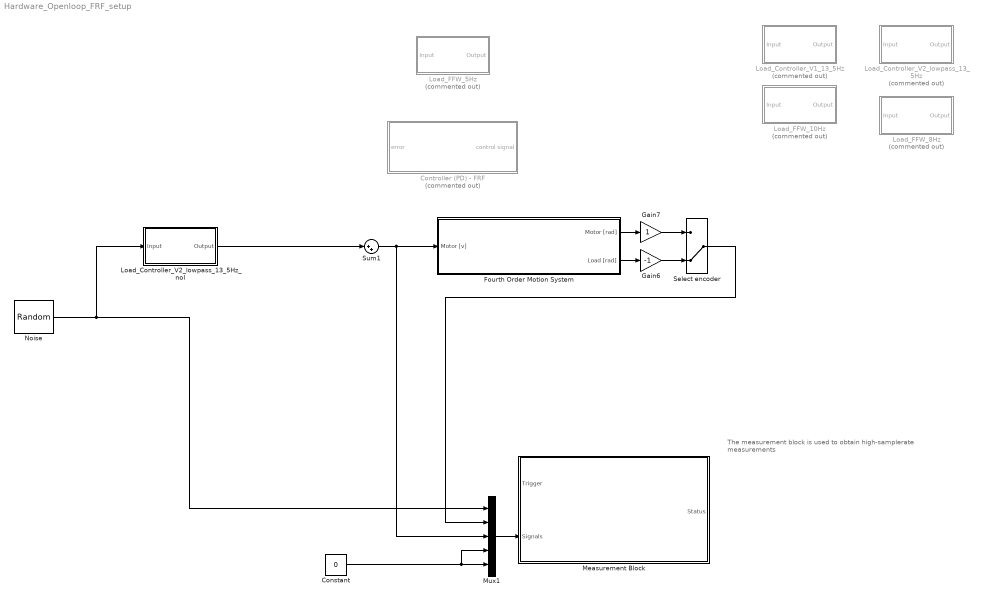
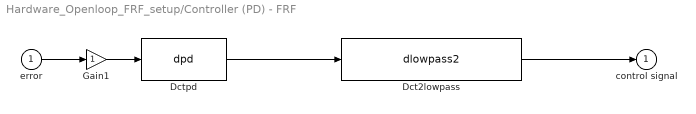
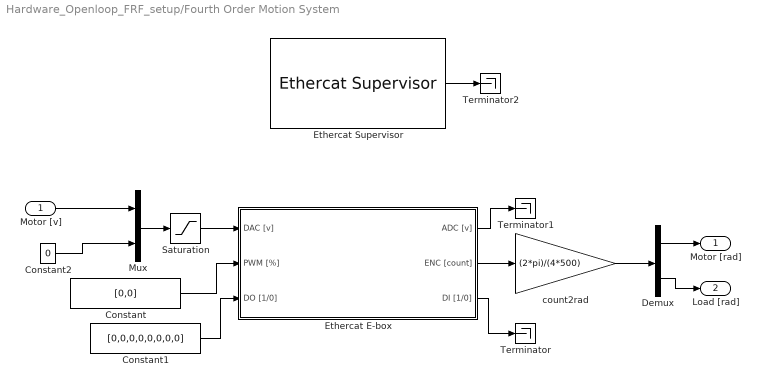
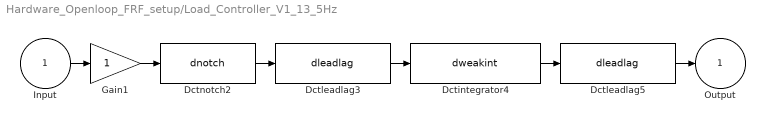
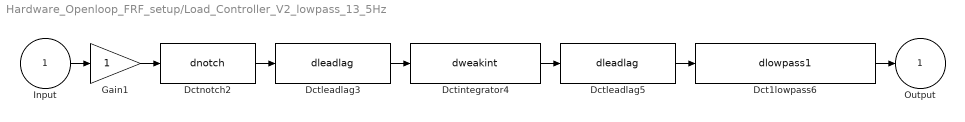
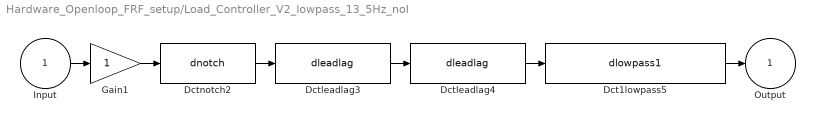
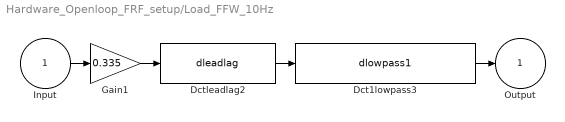
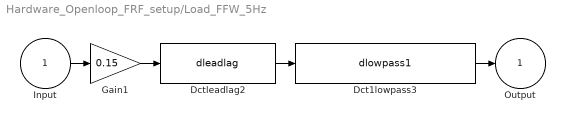
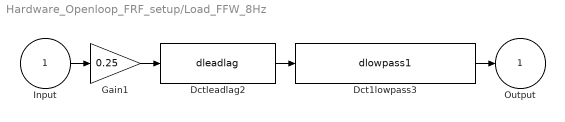
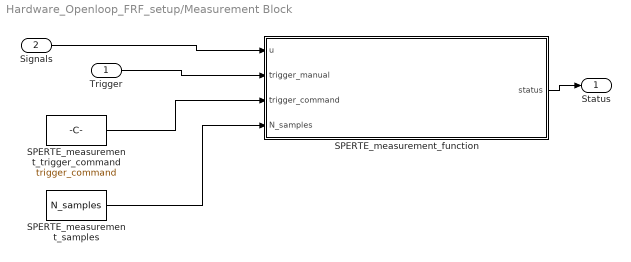
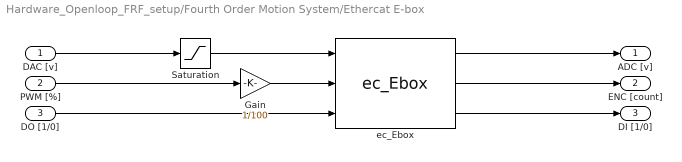
== matlab function Hardware_Openloop_FRF_setup/Measurement Block/SPERTE_measurement_function ==
function status = perform_measurement(u, trigger_manual, trigger_command, triggertype, N_samples)

%% Persistent variables
persistent fileID NF busy NS

% Init parameters
if isempty(NF)
    NF = int16(0);
end
if isempty(NS)
    NS = uint32(0);
end
if isempty(fileID)
    fileID = 0;
end
if isempty(busy)
    busy = uint8(0);
end

%% Check the triggers
if ( (triggertype == 0 && trigger_manual == 1) || (triggertype == 1 && trigger_command == 1) || (triggertype == 2 && (trigger_command == 1 || trigger_manual == 1) ) )
    if busy == 1
        % We are already busy, nothing to do
    else
        % We should start a new one
        fileID = fopen(sprintf('measurement_%d.bin',NF),'w');  
        NF = NF + 1;
        busy = uint8(1);
        NS = uint32(0);
    end
end

% We have started a measurement
if busy == 1
    if NS < N_samples 
        % Here we write the sample, in single precision float
        fwrite(fileID,u,'single');
        NS = NS + uint32(1);
    else
       % We have N samples already, we are done
       fclose(fileID);
       busy = uint8(0);
       NS = uint32(0);
    end
      
end
    % Output state
    status = uint8(busy);
end

/*
 * Hardware_Openloop_FRF_setup.c
 *
 * Academic License - for use in teaching, academic research, and meeting
 * course requirements at degree granting institutions only.  Not for
 * government, commercial, or other organizational use.
 *
 * Code generation for model "Hardware_Openloop_FRF_setup".
 *
 * Model version              : 14.20
 * Simulink Coder version : 25.1 (R2025a) 21-Nov-2024
 * C source code generated on : Tue Oct 21 13:19:38 2025
 *
 * Target selection: ert.tlc
 * Note: GRT includes extra infrastructure and instrumentation for prototyping
 * Embedded hardware selection: ARM Compatible->ARM Cortex-A (32-bit)
 * Code generation objectives: Unspecified
 * Validation result: Not run
 */

#include "Hardware_Openloop_FRF_setup.h"
#include "Hardware_Openloop_FRF_setup_types.h"
#include "rtwtypes.h"
#include <string.h>
#include <math.h>
#include "rt_nonfinite.h"
#include "Hardware_Openloop_FRF_setup_private.h"
#include <stddef.h>
#include <stdio.h>
#include <stdlib.h>

/* Named constants for MATLAB Function: '<S3>/SPERTE_measurement_function' */
#define Hardware_Openloop_FR_CALL_EVENT (-1)

/* Block signals (default storage) */
B_Hardware_Openloop_FRF_setup_T Hardware_Openloop_FRF_setup_B;

/* Block states (default storage) */
DW_Hardware_Openloop_FRF_setup_T Hardware_Openloop_FRF_setup_DW;

/* Real-time model */
static RT_MODEL_Hardware_Openloop_FRF_setup_T Hardware_Openloop_FRF_setup_M_;
RT_MODEL_Hardware_Openloop_FRF_setup_T *const Hardware_Openloop_FRF_setup_M =
  &Hardware_Openloop_FRF_setup_M_;

/* Forward declaration for local functions */
static void Hardware_Openloo_emxInit_char_T(emxArray_char_T_Hardware_Open_T
  **pEmxArray, int32_T numDimensions);
static void Hardwa_emxEnsureCapacity_char_T(emxArray_char_T_Hardware_Open_T
  *emxArray, int32_T oldNumel);
static void Hardware_Openloo_emxFree_char_T(emxArray_char_T_Hardware_Open_T
  **pEmxArray);
static int8_T Hardware_Openloop_FRF__filedata(void);
static int8_T Hardware_Openloop_FRF_se_cfopen(const
  emxArray_char_T_Hardware_Open_T *cfilename, const char_T *cpermission);
static int32_T Hardware_Openloop_FRF_s_cfclose(real_T fid);

/*
 * Writes out MAT-file header.  Returns success or failure.
 * Returns:
 * 0 - success
 * 1 - failure
 */
int_T rt_WriteMat4FileHeader(FILE *fp, int32_T m, int32_T n, const char *name)
{
  typedef enum { ELITTLE_ENDIAN, EBIG_ENDIAN } ByteOrder;

  int16_T one = 1;
  ByteOrder byteOrder = (*((int8_T *)&one)==1) ? ELITTLE_ENDIAN : EBIG_ENDIAN;
  int32_T type = (byteOrder == ELITTLE_ENDIAN) ? 0: 1000;
  int32_T imagf = 0;
  int32_T name_len = (int32_T)strlen(name) + 1;
  if ((fwrite(&type, sizeof(int32_T), 1, fp) == 0) ||
      (fwrite(&m, sizeof(int32_T), 1, fp) == 0) ||
      (fwrite(&n, sizeof(int32_T), 1, fp) == 0) ||
      (fwrite(&imagf, sizeof(int32_T), 1, fp) == 0) ||
      (fwrite(&name_len, sizeof(int32_T), 1, fp) == 0) ||
      (fwrite(name, sizeof(char), name_len, fp) == 0)) {
    return(1);
  } else {
    return(0);
  }
}                                      /* end rt_WriteMat4FileHeader */

real_T rt_urand_Upu32_Yd_f_pw_snf(uint32_T *u)
{
  uint32_T hi;
  uint32_T lo;

  /* Uniform random number generator (random number between 0 and 1)

     #define IA      16807                      magic multiplier = 7^5
     #define IM      2147483647                 modulus = 2^31-1
     #define IQ      127773                     IM div IA
     #define IR      2836                       IM modulo IA
     #define S       4.656612875245797e-10      reciprocal of 2^31-1
     test = IA * (seed % IQ) - IR * (seed/IQ)
     seed = test < 0 ? (test + IM) : test
     return (seed*S)
   */
  lo = *u % 127773U * 16807U;
  hi = *u / 127773U * 2836U;
  if (lo < hi) {
    *u = 2147483647U - (hi - lo);
  } else {
    *u = lo - hi;
  }

  return (real_T)*u * 4.6566128752457969E-10;
}

real_T rt_nrand_Upu32_Yd_f_pw_snf(uint32_T *u)
{
  real_T si;
  real_T sr;
  real_T y;

  /* Normal (Gaussian) random number generator */
  do {
    sr = 2.0 * rt_urand_Upu32_Yd_f_pw_snf(u) - 1.0;
    si = 2.0 * rt_urand_Upu32_Yd_f_pw_snf(u) - 1.0;
    si = sr * sr + si * si;
  } while (si > 1.0);

  y = sqrt(-2.0 * log(si) / si) * sr;
  return y;
}

static void Hardware_Openloo_emxInit_char_T(emxArray_char_T_Hardware_Open_T
  **pEmxArray, int32_T numDimensions)
{
  emxArray_char_T_Hardware_Open_T *emxArray;
  int32_T i;
  *pEmxArray = (emxArray_char_T_Hardware_Open_T *)malloc(sizeof
    (emxArray_char_T_Hardware_Open_T));
  emxArray = *pEmxArray;
  emxArray->data = (char_T *)NULL;
  emxArray->numDimensions = numDimensions;
  emxArray->size = (int32_T *)malloc(sizeof(int32_T) * (uint32_T)numDimensions);
  emxArray->allocatedSize = 0;
  emxArray->canFreeData = true;
  for (i = 0; i < numDimensions; i++) {
    emxArray->size[i] = 0;
  }
}

static void Hardwa_emxEnsureCapacity_char_T(emxArray_char_T_Hardware_Open_T
  *emxArray, int32_T oldNumel)
{
  int32_T i;
  int32_T newNumel;
  void *newData;
  if (oldNumel < 0) {
    oldNumel = 0;
  }

  newNumel = 1;
  for (i = 0; i < emxArray->numDimensions; i++) {
    newNumel *= emxArray->size[i];
  }

  if (newNumel > emxArray->allocatedSize) {
    i = emxArray->allocatedSize;
    if (i < 16) {
      i = 16;
    }

    while (i < newNumel) {
      if (i > 1073741823) {
        i = MAX_int32_T;
      } else {
        i <<= 1;
      }
    }

    newData = malloc((uint32_T)i * sizeof(char_T));
    if (emxArray->data != NULL) {
      memcpy(newData, emxArray->data, sizeof(char_T) * (uint32_T)oldNumel);
      if (emxArray->canFreeData) {
        free(emxArray->data);
      }
    }

    emxArray->data = (char_T *)newData;
    emxArray->allocatedSize = i;
    emxArray->canFreeData = true;
  }
}

static void Hardware_Openloo_emxFree_char_T(emxArray_char_T_Hardware_Open_T
  **pEmxArray)
{
  if (*pEmxArray != (emxArray_char_T_Hardware_Open_T *)NULL) {
    if (((*pEmxArray)->data != (char_T *)NULL) && (*pEmxArray)->canFreeData) {
      free((*pEmxArray)->data);
    }

    free((*pEmxArray)->size);
    free(*pEmxArray);
    *pEmxArray = (emxArray_char_T_Hardware_Open_T *)NULL;
  }
}

/* Function for MATLAB Function: '<S3>/SPERTE_measurement_function' */
static int8_T Hardware_Openloop_FRF__filedata(void)
{
  int32_T k;
  int8_T f;
  boolean_T exitg1;
  f = 0;
  k = 1;
  exitg1 = false;
  while ((!exitg1) && (k - 1 < 20)) {
    if (Hardware_Openloop_FRF_setup_DW.eml_openfiles[(int8_T)k - 1] == NULL) {
      f = (int8_T)k;
      exitg1 = true;
    } else {
      k++;
    }
  }

  return f;
}

/* Function for MATLAB Function: '<S3>/SPERTE_measurement_function' */
static int8_T Hardware_Openloop_FRF_se_cfopen(const
  emxArray_char_T_Hardware_Open_T *cfilename, const char_T *cpermission)
{
  FILE *filestar;
  emxArray_char_T_Hardware_Open_T *ccfilename;
  int32_T loop_ub;
  int8_T fileid;
  int8_T j;
  fileid = -1;
  j = Hardware_Openloop_FRF__filedata();
  if (j >= 1) {
    Hardware_Openloo_emxInit_char_T(&ccfilename, 2);
    loop_ub = ccfilename->size[0] * ccfilename->size[1];
    ccfilename->size[0] = 1;
    ccfilename->size[1] = cfilename->size[1] + 1;
    Hardwa_emxEnsureCapacity_char_T(ccfilename, loop_ub);
    loop_ub = cfilename->size[1];
    if (loop_ub - 1 >= 0) {
      memcpy(&ccfilename->data[0], &cfilename->data[0], (uint32_T)loop_ub *
             sizeof(char_T));
    }

    ccfilename->data[cfilename->size[1]] = '\x00';
    filestar = fopen(&ccfilename->data[0], cpermission);
    Hardware_Openloo_emxFree_char_T(&ccfilename);
    if (filestar != NULL) {
      Hardware_Openloop_FRF_setup_DW.eml_openfiles[j - 1] = filestar;
      Hardware_Openloop_FRF_setup_DW.eml_autoflush[j - 1] = true;
      loop_ub = j + 2;
      if (j + 2 > 127) {
        loop_ub = 127;
      }

      fileid = (int8_T)loop_ub;
    }
  }

  return fileid;
}

/* Function for MATLAB Function: '<S3>/SPERTE_measurement_function' */
static int32_T Hardware_Openloop_FRF_s_cfclose(real_T fid)
{
  FILE *f;
  int32_T cst;
  int32_T st;
  int8_T b_fileid;
  int8_T fileid;
  st = -1;
  fileid = (int8_T)fid;
  if (((int8_T)fid < 0) || (fid != (int8_T)fid)) {
    fileid = -1;
  }

  b_fileid = fileid;
  if (fileid < 0) {
    b_fileid = -1;
  }

  if (b_fileid >= 3) {
    f = Hardware_Openloop_FRF_setup_DW.eml_openfiles[b_fileid - 3];
  } else if (b_fileid == 0) {
    f = stdin;
  } else if (b_fileid == 1) {
    f = stdout;
  } else if (b_fileid == 2) {
    f = stderr;
  } else {
    f = NULL;
  }

  if ((f != NULL) && (fileid >= 3)) {
    cst = fclose(f);
    if (cst == 0) {
      st = 0;
      Hardware_Openloop_FRF_setup_DW.eml_openfiles[fileid - 3] = NULL;
      Hardware_Openloop_FRF_setup_DW.eml_autoflush[fileid - 3] = true;
    }
  }

  return st;
}

/* Model step function */
void Hardware_Openloop_FRF_setup_step(void)
{
  FILE *f;
  size_t bytesOutSizet;
  emxArray_char_T_Hardware_Open_T *str;
  emxArray_char_T_Hardware_Open_T *str_0;
  real_T y;
  int32_T i;
  int32_T tmp;
  real32_T xout[5];
  int8_T b_fileid;
  boolean_T autoflush;

  /* Constant: '<S1>/Constant1' */
  memcpy(&Hardware_Openloop_FRF_setup_B.Constant1[0],
         &Hardware_Openloop_FRF_setup_P.Constant1_Value[0], sizeof(real_T) << 3U);

  /* S-Function (getTiming): '<S5>/S-Function1' */

  /* Level2 S-Function Block: '<S5>/S-Function1' (getTiming) */
  {
    SimStruct *rts = Hardware_Openloop_FRF_setup_M->childSfunctions[0];
    sfcnOutputs(rts,0);
  }

  /* ToFile: '<S5>/To File ' */
  {
    if (!(++Hardware_Openloop_FRF_setup_DW.ToFile_IWORK.Decimation % 1) &&
        (Hardware_Openloop_FRF_setup_DW.ToFile_IWORK.Count * (1 + 1)) + 1 <
        100000000 ) {
      FILE *fp = (FILE *) Hardware_Openloop_FRF_setup_DW.ToFile_PWORK.FilePtr;
      if (fp != (NULL)) {
        real_T u[1 + 1];
        Hardware_Openloop_FRF_setup_DW.ToFile_IWORK.Decimation = 0;
        u[0] = Hardware_Openloop_FRF_setup_M->Timing.t[0];
        u[1] = Hardware_Openloop_FRF_setup_B.SFunction1;
        if (fwrite(u, sizeof(real_T), 1 + 1, fp) != 1 + 1) {
          rtmSetErrorStatus(Hardware_Openloop_FRF_setup_M,
                            "Error writing to MAT-file Ts_meas.mat");
          return;
        }

        if (((++Hardware_Openloop_FRF_setup_DW.ToFile_IWORK.Count) * (1 + 1))+1 >=
            100000000) {
          (void)fprintf(stdout,
                        "*** The ToFile block will stop logging data before\n"
                        "    the simulation has ended, because it has reached\n"
                        "    the maximum number of elements (100000000)\n"
                        "    allowed in MAT-file Ts_meas.mat.\n");
        }
      }
    }
  }

  /* S-Function (ec_Supervisor): '<S5>/S-Function' */

  /* Level2 S-Function Block: '<S5>/S-Function' (ec_Supervisor) */
  {
    SimStruct *rts = Hardware_Openloop_FRF_setup_M->childSfunctions[1];
    sfcnOutputs(rts,0);
  }

  /* Gain: '<S2>/Gain1' incorporates:
   *  RandomNumber: '<Root>/Noise'
   */
  Hardware_Openloop_FRF_setup_B.Gain1 = Hardware_Openloop_FRF_setup_P.Gain1_Gain
    * Hardware_Openloop_FRF_setup_DW.NextOutput;

  /* S-Function (dnotch): '<S2>/Dctnotch2' */

  /* Level2 S-Function Block: '<S2>/Dctnotch2' (dnotch) */
  {
    SimStruct *rts = Hardware_Openloop_FRF_setup_M->childSfunctions[2];
    sfcnOutputs(rts,0);
  }

  /* S-Function (dleadlag): '<S2>/Dctleadlag3' */

  /* Level2 S-Function Block: '<S2>/Dctleadlag3' (dleadlag) */
  {
    SimStruct *rts = Hardware_Openloop_FRF_setup_M->childSfunctions[3];
    sfcnOutputs(rts,0);
  }

  /* S-Function (dleadlag): '<S2>/Dctleadlag4' */

  /* Level2 S-Function Block: '<S2>/Dctleadlag4' (dleadlag) */
  {
    SimStruct *rts = Hardware_Openloop_FRF_setup_M->childSfunctions[4];
    sfcnOutputs(rts,0);
  }

  /* S-Function (dlowpass1): '<S2>/Dct1lowpass5' */

  /* Level2 S-Function Block: '<S2>/Dct1lowpass5' (dlowpass1) */
  {
    SimStruct *rts = Hardware_Openloop_FRF_setup_M->childSfunctions[5];
    sfcnOutputs(rts,0);
  }

  /* S-Function (ec_Ebox): '<S4>/ec_Ebox' */

  /* Level2 S-Function Block: '<S4>/ec_Ebox' (ec_Ebox) */
  {
    SimStruct *rts = Hardware_Openloop_FRF_setup_M->childSfunctions[6];
    sfcnOutputs(rts,0);
  }

  /* Gain: '<S4>/Gain' incorporates:
   *  Constant: '<S1>/Constant'
   */
  Hardware_Openloop_FRF_setup_B.Gain[0] =
    Hardware_Openloop_FRF_setup_P.Gain_Gain *
    Hardware_Openloop_FRF_setup_P.Constant_Value[0];
  Hardware_Openloop_FRF_setup_B.Gain[1] =
    Hardware_Openloop_FRF_setup_P.Gain_Gain *
    Hardware_Openloop_FRF_setup_P.Constant_Value[1];

  /* Saturate: '<S1>/Saturation' incorporates:
   *  Sum: '<Root>/Sum1'
   */
  if (Hardware_Openloop_FRF_setup_B.Dct1lowpass5 >
      Hardware_Openloop_FRF_setup_P.Saturation_UpperSat) {
    y = Hardware_Openloop_FRF_setup_P.Saturation_UpperSat;
  } else if (Hardware_Openloop_FRF_setup_B.Dct1lowpass5 <
             Hardware_Openloop_FRF_setup_P.Saturation_LowerSat) {
    y = Hardware_Openloop_FRF_setup_P.Saturation_LowerSat;
  } else {
    y = Hardware_Openloop_FRF_setup_B.Dct1lowpass5;
  }

  /* Saturate: '<S4>/Saturation' */
  if (y > Hardware_Openloop_FRF_setup_P.Saturation_UpperSat_d) {
    /* Saturate: '<S4>/Saturation' */
    Hardware_Openloop_FRF_setup_B.Saturation[0] =
      Hardware_Openloop_FRF_setup_P.Saturation_UpperSat_d;
  } else if (y < Hardware_Openloop_FRF_setup_P.Saturation_LowerSat_e) {
    /* Saturate: '<S4>/Saturation' */
    Hardware_Openloop_FRF_setup_B.Saturation[0] =
      Hardware_Openloop_FRF_setup_P.Saturation_LowerSat_e;
  } else {
    /* Saturate: '<S4>/Saturation' */
    Hardware_Openloop_FRF_setup_B.Saturation[0] = y;
  }

  /* Saturate: '<S1>/Saturation' incorporates:
   *  Constant: '<S1>/Constant2'
   */
  if (Hardware_Openloop_FRF_setup_P.Constant2_Value >
      Hardware_Openloop_FRF_setup_P.Saturation_UpperSat) {
    y = Hardware_Openloop_FRF_setup_P.Saturation_UpperSat;
  } else if (Hardware_Openloop_FRF_setup_P.Constant2_Value <
             Hardware_Openloop_FRF_setup_P.Saturation_LowerSat) {
    y = Hardware_Openloop_FRF_setup_P.Saturation_LowerSat;
  } else {
    y = Hardware_Openloop_FRF_setup_P.Constant2_Value;
  }

  /* Saturate: '<S4>/Saturation' */
  if (y > Hardware_Openloop_FRF_setup_P.Saturation_UpperSat_d) {
    /* Saturate: '<S4>/Saturation' */
    Hardware_Openloop_FRF_setup_B.Saturation[1] =
      Hardware_Openloop_FRF_setup_P.Saturation_UpperSat_d;
  } else if (y < Hardware_Openloop_FRF_setup_P.Saturation_LowerSat_e) {
    /* Saturate: '<S4>/Saturation' */
    Hardware_Openloop_FRF_setup_B.Saturation[1] =
      Hardware_Openloop_FRF_setup_P.Saturation_LowerSat_e;
  } else {
    /* Saturate: '<S4>/Saturation' */
    Hardware_Openloop_FRF_setup_B.Saturation[1] = y;
  }

  /* MATLAB Function: '<S3>/SPERTE_measurement_function' incorporates:
   *  Constant: '<Root>/Constant'
   *  Constant: '<S3>/SPERTE_measurement_samples'
   *  Constant: '<S3>/SPERTE_measurement_trigger_command'
   *  RandomNumber: '<Root>/Noise'
   *  Sum: '<Root>/Sum1'
   */
  Hardware_Openloop_FRF_setup_DW.sfEvent = Hardware_Openloop_FR_CALL_EVENT;
  if ((((Hardware_Openloop_FRF_setup_P.MeasurementBlock_triggertype == 1) &&
        (Hardware_Openloop_FRF_setup_P.MeasurementBlock_trigger_comman == 1)) ||
       ((Hardware_Openloop_FRF_setup_P.MeasurementBlock_triggertype == 2) &&
        (Hardware_Openloop_FRF_setup_P.MeasurementBlock_trigger_comman == 1))) &&
      (Hardware_Openloop_FRF_setup_DW.busy != 1)) {
    i = (int32_T)snprintf(NULL, 0, "measurement_%d.bin",
                          Hardware_Openloop_FRF_setup_DW.NF) + 1;
    Hardware_Openloo_emxInit_char_T(&str, 2);
    tmp = str->size[0] * str->size[1];
    str->size[0] = 1;
    str->size[1] = i;
    Hardwa_emxEnsureCapacity_char_T(str, tmp);
    snprintf(&str->data[0], (size_t)i, "measurement_%d.bin",
             Hardware_Openloop_FRF_setup_DW.NF);
    if (i - 1 < 1) {
      i = -1;
    } else {
      i -= 2;
    }

    Hardware_Openloo_emxInit_char_T(&str_0, 2);
    tmp = str_0->size[0] * str_0->size[1];
    str_0->size[0] = 1;
    str_0->size[1] = i + 1;
    Hardwa_emxEnsureCapacity_char_T(str_0, tmp);
    if (i >= 0) {
      memcpy(&str_0->data[0], &str->data[0], (uint32_T)(i + 1) * sizeof(char_T));
    }

    Hardware_Openloo_emxFree_char_T(&str);
    b_fileid = Hardware_Openloop_FRF_se_cfopen(str_0, "wb");
    Hardware_Openloo_emxFree_char_T(&str_0);
    Hardware_Openloop_FRF_setup_DW.fileID = b_fileid;
    i = Hardware_Openloop_FRF_setup_DW.NF + 1;
    if (Hardware_Openloop_FRF_setup_DW.NF + 1 > 32767) {
      i = 32767;
    }

    Hardware_Openloop_FRF_setup_DW.NF = (int16_T)i;
    Hardware_Openloop_FRF_setup_DW.busy = 1U;
    Hardware_Openloop_FRF_setup_DW.NS = 0U;
  }

  if (Hardware_Openloop_FRF_setup_DW.busy == 1) {
    if (Hardware_Openloop_FRF_setup_DW.NS <
        Hardware_Openloop_FRF_setup_P.MeasurementBlock_N_samples) {
      b_fileid = (int8_T)Hardware_Openloop_FRF_setup_DW.fileID;
      if (((int8_T)Hardware_Openloop_FRF_setup_DW.fileID < 0) ||
          (Hardware_Openloop_FRF_setup_DW.fileID != (int8_T)
           Hardware_Openloop_FRF_setup_DW.fileID)) {
        b_fileid = -1;
      }

      if (b_fileid >= 3) {
        autoflush = Hardware_Openloop_FRF_setup_DW.eml_autoflush[b_fileid - 3];
        f = Hardware_Openloop_FRF_setup_DW.eml_openfiles[b_fileid - 3];
      } else if (b_fileid == 0) {
        f = stdin;
        autoflush = true;
      } else if (b_fileid == 1) {
        f = stdout;
        autoflush = true;
      } else if (b_fileid == 2) {
        f = stderr;
        autoflush = true;
      } else {
        f = NULL;
        autoflush = true;
      }

      if (!(Hardware_Openloop_FRF_setup_DW.fileID != 0.0)) {
        f = NULL;
      }

      if (!(f == NULL)) {
        xout[0] = (real32_T)Hardware_Openloop_FRF_setup_DW.NextOutput;

        /* ManualSwitch: '<Root>/Select encoder' incorporates:
         *  Gain: '<Root>/Gain6'
         *  Gain: '<Root>/Gain7'
         *  Gain: '<S1>/count2rad'
         *  RandomNumber: '<Root>/Noise'
         */
        if (Hardware_Openloop_FRF_setup_P.Selectencoder_CurrentSetting == 1) {
          xout[1] = (real32_T)(Hardware_Openloop_FRF_setup_P.count2rad_Gain *
                               Hardware_Openloop_FRF_setup_B.ec_Ebox_o2[0] *
                               Hardware_Openloop_FRF_setup_P.Gain7_Gain);
        } else {
          xout[1] = (real32_T)(Hardware_Openloop_FRF_setup_P.count2rad_Gain *
                               Hardware_Openloop_FRF_setup_B.ec_Ebox_o2[1] *
                               Hardware_Openloop_FRF_setup_P.Gain6_Gain);
        }

        /* End of ManualSwitch: '<Root>/Select encoder' */
        xout[2] = (real32_T)Hardware_Openloop_FRF_setup_B.Dct1lowpass5;
        xout[3] = (real32_T)Hardware_Openloop_FRF_setup_P.Constant_Value_n;
        xout[4] = (real32_T)Hardware_Openloop_FRF_setup_P.Constant_Value_n;
        bytesOutSizet = fwrite(&xout[0], sizeof(real32_T), (size_t)5, f);
        if (((real_T)bytesOutSizet > 0.0) && autoflush) {
          fflush(f);
        }
      }

      Hardware_Openloop_FRF_setup_DW.NS++;
    } else {
      Hardware_Openloop_FRF_s_cfclose(Hardware_Openloop_FRF_setup_DW.fileID);
      Hardware_Openloop_FRF_setup_DW.busy = 0U;
      Hardware_Openloop_FRF_setup_DW.NS = 0U;
    }
  }

  /* End of MATLAB Function: '<S3>/SPERTE_measurement_function' */

  /* Update for RandomNumber: '<Root>/Noise' */
  Hardware_Openloop_FRF_setup_DW.NextOutput = rt_nrand_Upu32_Yd_f_pw_snf
    (&Hardware_Openloop_FRF_setup_DW.RandSeed) *
    Hardware_Openloop_FRF_setup_P.Noise_StdDev +
    Hardware_Openloop_FRF_setup_P.Noise_Mean;

  /* Update absolute time for base rate */
  /* The "clockTick0" counts the number of times the code of this task has
   * been executed. The absolute time is the multiplication of "clockTick0"
   * and "Timing.stepSize0". Size of "clockTick0" ensures timer will not
   * overflow during the application lifespan selected.
   * Timer of this task consists of two 32 bit unsigned integers.
   * The two integers represent the low bits Timing.clockTick0 and the high bits
   * Timing.clockTickH0. When the low bit overflows to 0, the high bits increment.
   */
  if (!(++Hardware_Openloop_FRF_setup_M->Timing.clockTick0)) {
    ++Hardware_Openloop_FRF_setup_M->Timing.clockTickH0;
  }

  Hardware_Openloop_FRF_setup_M->Timing.t[0] =
    Hardware_Openloop_FRF_setup_M->Timing.clockTick0 *
    Hardware_Openloop_FRF_setup_M->Timing.stepSize0 +
    Hardware_Openloop_FRF_setup_M->Timing.clockTickH0 *
    Hardware_Openloop_FRF_setup_M->Timing.stepSize0 * 4294967296.0;
}
